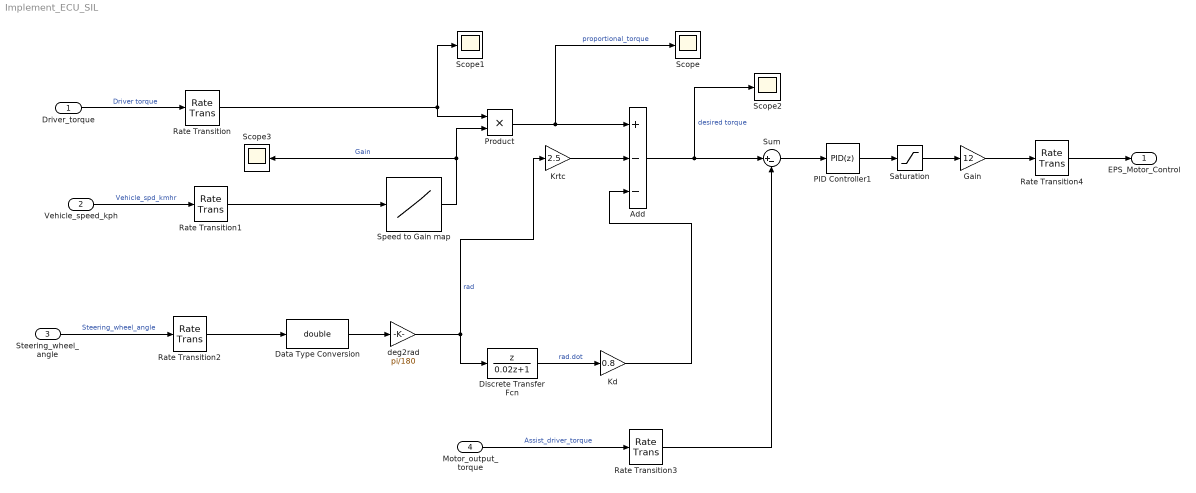
/*
 * Academic License - for use in teaching, academic research, and meeting
 * course requirements at degree granting institutions only.  Not for
 * government, commercial, or other organizational use.
 *
 * File: Implement_ECU_SIL.c
 *
 * Code generated for Simulink model 'Implement_ECU_SIL'.
 *
 * Model version                  : 1.135
 * Simulink Coder version         : 26.1 (R2026a) 20-Nov-2025
 * C/C++ source code generated on : Sat Aug  1 18:42:23 2026
 *
 * Target selection: ert.tlc
 * Embedded hardware selection: Intel->x86-64 (Windows64)
 * Code generation objectives: Unspecified
 * Validation result: Not run
 */

#include "Implement_ECU_SIL.h"
#include "rtwtypes.h"
#include "Implement_ECU_SIL_private.h"

/* Block states (default storage) */
DW_Implement_ECU_SIL_T Implement_ECU_SIL_DW;

/* External inputs (root inport signals with default storage) */
ExtU_Implement_ECU_SIL_T Implement_ECU_SIL_U;

/* External outputs (root outports fed by signals with default storage) */
ExtY_Implement_ECU_SIL_T Implement_ECU_SIL_Y;

/* Real-time model */
static RT_MODEL_Implement_ECU_SIL_T Implement_ECU_SIL_M_;
RT_MODEL_Implement_ECU_SIL_T *const Implement_ECU_SIL_M = &Implement_ECU_SIL_M_;
real_T look1_binlxpw(real_T u0, const real_T bp0[], const real_T table[],
                     uint32_T maxIndex)
{
  real_T frac;
  real_T yL_0d0;
  uint32_T iLeft;

  /* Column-major Lookup 1-D
     Search method: 'binary'
     Use previous index: 'off'
     Interpolation method: 'Linear point-slope'
     Extrapolation method: 'Linear'
     Use last breakpoint for index at or above upper limit: 'off'
     Remove protection against out-of-range input in generated code: 'off'
   */
  /* Prelookup - Index and Fraction
     Index Search method: 'binary'
     Extrapolation method: 'Linear'
     Use previous index: 'off'
     Use last breakpoint for index at or above upper limit: 'off'
     Remove protection against out-of-range input in generated code: 'off'
   */
  if (u0 <= bp0[0U]) {
    iLeft = 0U;
    frac = (u0 - bp0[0U]) / (bp0[1U] - bp0[0U]);
  } else if (u0 < bp0[maxIndex]) {
    uint32_T bpIdx;
    uint32_T iRght;

    /* Binary Search */
    bpIdx = maxIndex >> 1U;
    iLeft = 0U;
    iRght = maxIndex;
    while (iRght - iLeft > 1U) {
      if (u0 < bp0[bpIdx]) {
        iRght = bpIdx;
      } else {
        iLeft = bpIdx;
      }

      bpIdx = (iRght + iLeft) >> 1U;
    }

    frac = (u0 - bp0[iLeft]) / (bp0[iLeft + 1U] - bp0[iLeft]);
  } else {
    iLeft = maxIndex - 1U;
    frac = (u0 - bp0[maxIndex - 1U]) / (bp0[maxIndex] - bp0[maxIndex - 1U]);
  }

  /* Column-major Interpolation 1-D
     Interpolation method: 'Linear point-slope'
     Use last breakpoint for index at or above upper limit: 'off'
     Overflow mode: 'portable wrapping'
   */
  yL_0d0 = table[iLeft];
  return (table[iLeft + 1U] - yL_0d0) * frac + yL_0d0;
}

/* Model step function */
void Implement_ECU_SIL_step(void)
{
  real_T DiscreteTransferFcn_tmp;
  real_T rtb_DeadZone;
  real_T rtb_FilterCoefficient;
  real_T rtb_rad;
  real_T tmp;
  int8_T tmp_0;
  int8_T tmp_1;

  /* Gain: '<Root>/deg2rad' incorporates:
   *  DataTypeConversion: '<Root>/Data Type Conversion'
   *  Inport: '<Root>/Steering_wheel_angle'
   */
  rtb_rad = 0.017453292519943295 * Implement_ECU_SIL_U.Steering_wheel_angle;

  /* DiscreteTransferFcn: '<Root>/Discrete Transfer Fcn' */
  DiscreteTransferFcn_tmp = (rtb_rad -
    Implement_ECU_SIL_DW.DiscreteTransferFcn_states) / 0.02;

  /* Sum: '<Root>/Sum' incorporates:
   *  DiscreteTransferFcn: '<Root>/Discrete Transfer Fcn'
   *  Gain: '<Root>/Kd'
   *  Gain: '<Root>/Krtc'
   *  Inport: '<Root>/Driver_torque'
   *  Inport: '<Root>/Motor_output_torque'
   *  Inport: '<Root>/Vehicle_speed_kph'
   *  Lookup_n-D: '<Root>/Speed to Gain map'
   *  Product: '<Root>/Product'
   *  Sum: '<Root>/Add'
   */
  rtb_rad = ((Implement_ECU_SIL_U.Drivertorque * look1_binlxpw
              (Implement_ECU_SIL_U.Vehicle_spd_kmhr,
               Implement_ECU_SIL_ConstP.SpeedtoGainmap_bp01Data,
               Implement_ECU_SIL_ConstP.SpeedtoGainmap_tableData, 18U) - 2.5 *
              rtb_rad) - (0.0 * Implement_ECU_SIL_DW.DiscreteTransferFcn_states
              + DiscreteTransferFcn_tmp) * 0.8) -
    Implement_ECU_SIL_U.Assist_driver_torque;

  /* Gain: '<S41>/Filter Coefficient' incorporates:
   *  DiscreteIntegrator: '<S33>/Filter'
   *  Gain: '<S31>/Derivative Gain'
   *  Sum: '<S33>/SumD'
   */
  rtb_FilterCoefficient = (0.0 * rtb_rad - Implement_ECU_SIL_DW.Filter_DSTATE) *
    100.0;

  /* Sum: '<S47>/Sum' incorporates:
   *  DiscreteIntegrator: '<S38>/Integrator'
   */
  rtb_DeadZone = (rtb_rad + Implement_ECU_SIL_DW.Integrator_DSTATE) +
    rtb_FilterCoefficient;

  /* Saturate: '<S45>/Saturation' incorporates:
   *  DeadZone: '<S30>/DeadZone'
   */
  if (rtb_DeadZone > 1.0) {
    tmp = 1.0;
    rtb_DeadZone--;
  } else {
    if (rtb_DeadZone < 0.0) {
      tmp = 0.0;
    } else {
      tmp = rtb_DeadZone;
    }

    if (rtb_DeadZone >= 0.0) {
      rtb_DeadZone = 0.0;
    }
  }

  /* Outport: '<Root>/EPS_Motor_Control' incorporates:
   *  Gain: '<Root>/Gain'
   *  Saturate: '<S45>/Saturation'
   */
  Implement_ECU_SIL_Y.EPS_Motor_Control = 12.0 * tmp;

  /* Gain: '<S35>/Integral Gain' */
  rtb_rad *= 5.0;

  /* Update for DiscreteTransferFcn: '<Root>/Discrete Transfer Fcn' */
  Implement_ECU_SIL_DW.DiscreteTransferFcn_states = DiscreteTransferFcn_tmp;

  /* Update for DiscreteIntegrator: '<S33>/Filter' */
  Implement_ECU_SIL_DW.Filter_DSTATE += 0.001 * rtb_FilterCoefficient;

  /* Switch: '<S28>/Switch1' incorporates:
   *  Constant: '<S28>/Clamping_zero'
   *  Constant: '<S28>/Constant'
   *  Constant: '<S28>/Constant2'
   *  RelationalOperator: '<S28>/fix for DT propagation issue'
   */
  if (rtb_DeadZone > 0.0) {
    tmp_0 = 1;
  } else {
    tmp_0 = -1;
  }

  /* Switch: '<S28>/Switch2' incorporates:
   *  Constant: '<S28>/Clamping_zero'
   *  Constant: '<S28>/Constant3'
   *  Constant: '<S28>/Constant4'
   *  RelationalOperator: '<S28>/fix for DT propagation issue1'
   */
  if (rtb_rad > 0.0) {
    tmp_1 = 1;
  } else {
    tmp_1 = -1;
  }

  /* Switch: '<S28>/Switch' incorporates:
   *  Constant: '<S28>/Clamping_zero'
   *  Constant: '<S28>/Constant1'
   *  Logic: '<S28>/AND3'
   *  RelationalOperator: '<S28>/Equal1'
   *  RelationalOperator: '<S28>/Relational Operator'
   *  Switch: '<S28>/Switch1'
   *  Switch: '<S28>/Switch2'
   */
  if ((rtb_DeadZone != 0.0) && (tmp_0 == tmp_1)) {
    rtb_rad = 0.0;
  }

  /* Update for DiscreteIntegrator: '<S38>/Integrator' incorporates:
   *  Switch: '<S28>/Switch'
   */
  Implement_ECU_SIL_DW.Integrator_DSTATE += 0.001 * rtb_rad;
}
